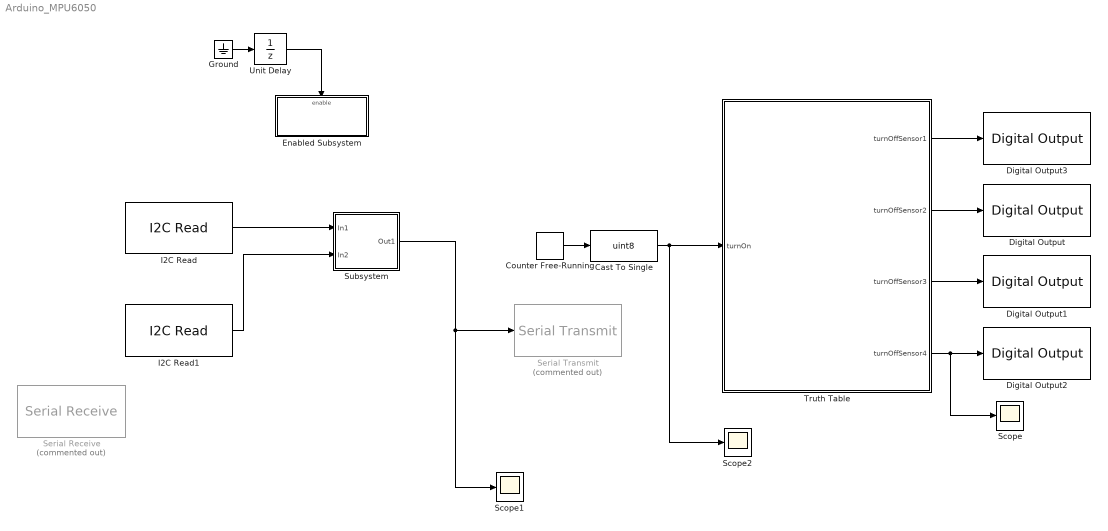
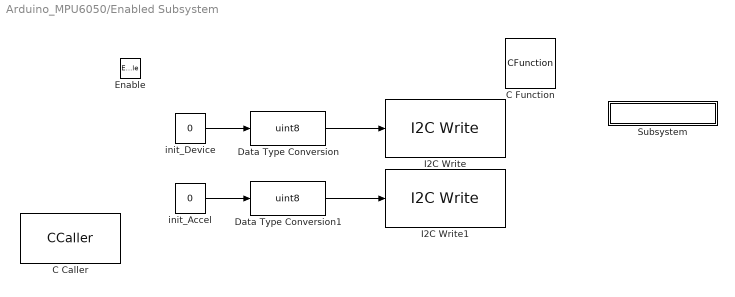
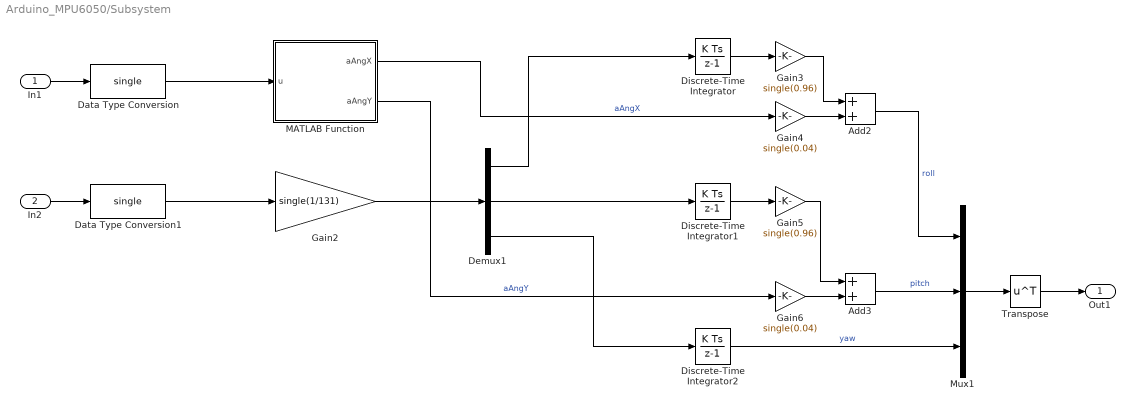
== system Arduino_MPU6050/Enabled Subsystem/Subsystem ==

== matlab function Arduino_MPU6050/Truth Table ==
function [turnOffSensor1,turnOffSensor2, turnOffSensor3, turnOffSensor4] = fcn(turnOn)

aVarTruthTableCondition_1 = false;
aVarTruthTableCondition_2 = false;
aVarTruthTableCondition_3 = false;
aVarTruthTableCondition_4 = false;


% Accelerometer 1

aVarTruthTableCondition_1 = logical(turnOn==uint8(0));

% Accelerometer 2

aVarTruthTableCondition_2 = logical(turnOn==uint8(1));

% Accelerometer 3

aVarTruthTableCondition_3 = logical(turnOn==uint8(2));

% Accelerometer 4

aVarTruthTableCondition_4 = logical(turnOn==uint8(3));

if (aVarTruthTableCondition_1 && ~aVarTruthTableCondition_2 && ~aVarTruthTableCondition_3 && ~aVarTruthTableCondition_4)
    Sensor1On();
elseif (~aVarTruthTableCondition_1 && aVarTruthTableCondition_2 && ~aVarTruthTableCondition_3 && ~aVarTruthTableCondition_4)
    Sensor2On();
elseif (~aVarTruthTableCondition_1 && ~aVarTruthTableCondition_2 && aVarTruthTableCondition_3 && ~aVarTruthTableCondition_4)
    Sensor3On();
elseif (~aVarTruthTableCondition_1 && ~aVarTruthTableCondition_2 && ~aVarTruthTableCondition_3 && aVarTruthTableCondition_4)
    Sensor4On();
else % Default
    SensorError();
end

function Sensor1On()

% SNSR1

turnOffSensor1 = false;
turnOffSensor2 = true;
turnOffSensor3 = true;
turnOffSensor4 = true;

function Sensor2On()

% SNSR2

turnOffSensor1 = true;
turnOffSensor2 = false;
turnOffSensor3 = true;
turnOffSensor4 = true;

function Sensor3On()

% SNSR3

turnOffSensor1 = true;
turnOffSensor2 = true;
turnOffSensor3 = false;
turnOffSensor4 = true;

function Sensor4On()

% SNSR4

turnOffSensor1 = true;
turnOffSensor2 = true;
turnOffSensor3 = true;
turnOffSensor4 = false;

function SensorError()

% Error

turnOffSensor1 = true;
turnOffSensor2 = true;
turnOffSensor3 = true;
turnOffSensor4 = true;

== matlab function Arduino_MPU6050/Subsystem/MATLAB Function ==
function [aAngX,aAngY] = fcn(u)
aX=u(1)/16384; aY=u(2)/16384; aZ=u(3)/16384;
aAngX = atan(aY / sqrt(aX^2+aZ^2))*180/pi - 0.58;
aAngY = atan(-aX/ sqrt(aY^2+aZ^2))*180/pi + 1.58;

/*
 * File: Arduino_MPU6050.c
 *
 * Code generated for Simulink model 'Arduino_MPU6050'.
 *
 * Model version                  : 1.23
 * Simulink Coder version         : 9.6 (R2021b) 14-May-2021
 * C/C++ source code generated on : Wed Apr 27 22:23:47 2022
 *
 * Target selection: ert.tlc
 * Embedded hardware selection: Atmel->AVR
 * Code generation objectives:
 *    1. Execution efficiency
 *    2. ROM efficiency
 * Validation result: Not run
 */

#include "Arduino_MPU6050.h"

/* Private macros used by the generated code to access rtModel */
#ifndef rtmSetTFinal
#define rtmSetTFinal(rtm, val)         ((rtm)->Timing.tFinal = (val))
#endif

#include "dsp_rt.h"  /* DSP System Toolbox general run time support functions */
#ifndef UCHAR_MAX
#include <limits.h>
#endif

#if ( UCHAR_MAX != (0xFFU) ) || ( SCHAR_MAX != (0x7F) )
#error Code was generated for compiler with different sized uchar/char. \
Consider adjusting Test hardware word size settings on the \
Hardware Implementation pane to match your compiler word sizes as \
defined in limits.h of the compiler. Alternatively, you can \
select the Test hardware is the same as production hardware option and \
select the Enable portable word sizes option on the Code Generation > \
Verification pane for ERT based targets, which will disable the \
preprocessor word size checks.
#endif

#if ( USHRT_MAX != (0xFFFFU) ) || ( SHRT_MAX != (0x7FFF) )
#error Code was generated for compiler with different sized ushort/short. \
Consider adjusting Test hardware word size settings on the \
Hardware Implementation pane to match your compiler word sizes as \
defined in limits.h of the compiler. Alternatively, you can \
select the Test hardware is the same as production hardware option and \
select the Enable portable word sizes option on the Code Generation > \
Verification pane for ERT based targets, which will disable the \
preprocessor word size checks.
#endif

#if ( UINT_MAX != (0xFFFFU) ) || ( INT_MAX != (0x7FFF) )
#error Code was generated for compiler with different sized uint/int. \
Consider adjusting Test hardware word size settings on the \
Hardware Implementation pane to match your compiler word sizes as \
defined in limits.h of the compiler. Alternatively, you can \
select the Test hardware is the same as production hardware option and \
select the Enable portable word sizes option on the Code Generation > \
Verification pane for ERT based targets, which will disable the \
preprocessor word size checks.
#endif

#if ( ULONG_MAX != (0xFFFFFFFFUL) ) || ( LONG_MAX != (0x7FFFFFFFL) )
#error Code was generated for compiler with different sized ulong/long. \
Consider adjusting Test hardware word size settings on the \
Hardware Implementation pane to match your compiler word sizes as \
defined in limits.h of the compiler. Alternatively, you can \
select the Test hardware is the same as production hardware option and \
select the Enable portable word sizes option on the Code Generation > \
Verification pane for ERT based targets, which will disable the \
preprocessor word size checks.
#endif

/* Block signals (default storage) */
B rtB;

/* Block states (default storage) */
DW rtDW;

/* Real-time model */
static RT_MODEL rtM_;
RT_MODEL *const rtM = &rtM_;
static void IfActionSubsystem(real32_T rtu_In1, real32_T rtu_In2, real32_T
  rtu_In3, real32_T rtu_In4, real32_T rtu_In5, real32_T rtu_In6, real32_T
  *rty_Out1, real32_T *rty_Out2);
static void IfActionSubsystem1(real32_T rtu_In1, real32_T rtu_In2, real32_T
  *rty_Out1, real32_T *rty_Out2);

/*
 * Output and update for action system:
 *    '<S7>/If Action Subsystem'
 *    '<S8>/If Action Subsystem'
 *    '<S9>/If Action Subsystem'
 */
static void IfActionSubsystem(real32_T rtu_In1, real32_T rtu_In2, real32_T
  rtu_In3, real32_T rtu_In4, real32_T rtu_In5, real32_T rtu_In6, real32_T
  *rty_Out1, real32_T *rty_Out2)
{
  /* Product: '<S13>/linear term6' incorporates:
   *  Product: '<S13>/linear term3'
   *  Product: '<S13>/linear term4'
   *  Sum: '<S13>/Sum1'
   */
  *rty_Out2 = (rtu_In5 * rtu_In3 - rtu_In4 * rtu_In1) / rtu_In6;

  /* Product: '<S13>/linear term5' incorporates:
   *  Product: '<S13>/linear term1'
   *  Product: '<S13>/linear term2'
   *  Sum: '<S13>/Sum4'
   */
  *rty_Out1 = (rtu_In1 * rtu_In2 - rtu_In3 * rtu_In4) / rtu_In6;
}

/*
 * Output and update for action system:
 *    '<S7>/If Action Subsystem1'
 *    '<S8>/If Action Subsystem1'
 *    '<S9>/If Action Subsystem1'
 */
static void IfActionSubsystem1(real32_T rtu_In1, real32_T rtu_In2, real32_T
  *rty_Out1, real32_T *rty_Out2)
{
  /* SignalConversion generated from: '<S14>/Out2' */
  *rty_Out2 = rtu_In2;

  /* SignalConversion generated from: '<S14>/Out1' incorporates:
   *  S-Function (sdspihcplx2): '<S14>/Inherit Complexity'
   */
  *rty_Out1 = rtu_In1;
}

/* Model step function */
void Arduino_MPU6050_step(void)
{
  /* local block i/o variables */
  real32_T rtb_Inherit;
  real32_T rtb_Inherit_g;
  real32_T rtb_Inherit_i;
  real32_T aX;
  real32_T aY;
  real32_T aZ;
  real32_T rtb_Sum1;
  int16_T b_output[3];
  uint8_T output_raw[6];
  uint8_T b_SwappedDataBytes[2];
  uint8_T b_x[2];
  uint8_T status;
  boolean_T aVarTruthTableCondition_1;
  boolean_T aVarTruthTableCondition_2;
  boolean_T aVarTruthTableCondition_3;
  boolean_T aVarTruthTableCondition_4;
  boolean_T tmp;
  boolean_T tmp_0;
  boolean_T tmp_2;

  /* Reset subsysRan breadcrumbs */
  srClearBC(rtDW.EnabledSubsystem_SubsysRanBC);

  /* Reset subsysRan breadcrumbs */
  srClearBC(rtDW.IfActionSubsystem_c.IfActionSubsystem_SubsysRanBC);

  /* Reset subsysRan breadcrumbs */
  srClearBC(rtDW.IfActionSubsystem1_g.IfActionSubsystem1_SubsysRanBC);

  /* MATLABSystem: '<Root>/I2C Read' */
  if (rtDW.obj_j.SampleTime != rtP.I2CRead_SampleTime) {
    rtDW.obj_j.SampleTime = rtP.I2CRead_SampleTime;
  }

  status = 59U;
  status = MW_I2C_MasterWrite(rtDW.obj_j.I2CDriverObj.MW_I2C_HANDLE, 104UL,
    &status, 1UL, true, false);
  if (0 == status) {
    MW_I2C_MasterRead(rtDW.obj_j.I2CDriverObj.MW_I2C_HANDLE, 104UL, &output_raw
                      [0], 6UL, false, true);
    memcpy((void *)&b_output[0], (void *)&output_raw[0], (uint16_T)((size_t)3 *
            sizeof(int16_T)));
    memcpy((void *)&b_SwappedDataBytes[0], (void *)&b_output[0], (uint16_T)
           ((size_t)2 * sizeof(uint8_T)));
    b_x[0] = b_SwappedDataBytes[1];
    b_x[1] = b_SwappedDataBytes[0];
    memcpy((void *)&b_output[0], (void *)&b_x[0], (uint16_T)((size_t)1 * sizeof
            (int16_T)));
    memcpy((void *)&b_SwappedDataBytes[0], (void *)&b_output[1], (uint16_T)
           ((size_t)2 * sizeof(uint8_T)));
    b_x[0] = b_SwappedDataBytes[1];
    b_x[1] = b_SwappedDataBytes[0];
    memcpy((void *)&b_output[1], (void *)&b_x[0], (uint16_T)((size_t)1 * sizeof
            (int16_T)));
    memcpy((void *)&b_SwappedDataBytes[0], (void *)&b_output[2], (uint16_T)
           ((size_t)2 * sizeof(uint8_T)));
    b_x[0] = b_SwappedDataBytes[1];
    b_x[1] = b_SwappedDataBytes[0];
    memcpy((void *)&b_output[2], (void *)&b_x[0], (uint16_T)((size_t)1 * sizeof
            (int16_T)));
  } else {
    b_output[0] = 0;
    b_output[1] = 0;
    b_output[2] = 0;
  }

  /* MATLAB Function: '<S3>/MATLAB Function' incorporates:
   *  MATLABSystem: '<Root>/I2C Read'
   */
  aX = (real32_T)b_output[0] / 16384.0F;
  aY = (real32_T)b_output[1] / 16384.0F;
  aZ = (real32_T)b_output[2] / 16384.0F;
  aZ *= aZ;

  /* Math: '<S3>/Transpose' incorporates:
   *  DiscreteIntegrator: '<S3>/Discrete-Time Integrator'
   *  DiscreteIntegrator: '<S3>/Discrete-Time Integrator1'
   *  DiscreteIntegrator: '<S3>/Discrete-Time Integrator2'
   *  Gain: '<S3>/Gain3'
   *  Gain: '<S3>/Gain4'
   *  Gain: '<S3>/Gain5'
   *  Gain: '<S3>/Gain6'
   *  MATLAB Function: '<S3>/MATLAB Function'
   *  Sum: '<S3>/Add2'
   *  Sum: '<S3>/Add3'
   */
  rtB.Transpose[0] = (atanf(aY / sqrtf(aX * aX + aZ)) * 180.0F / 3.14159274F -
                      0.58F) * rtP.Gain4_Gain + rtP.Gain3_Gain *
    rtDW.DiscreteTimeIntegrator_DSTATE;
  rtB.Transpose[1] = (atanf(-aX / sqrtf(aY * aY + aZ)) * 180.0F / 3.14159274F +
                      1.58F) * rtP.Gain6_Gain + rtP.Gain5_Gain *
    rtDW.DiscreteTimeIntegrator1_DSTATE;
  rtB.Transpose[2] = rtDW.DiscreteTimeIntegrator2_DSTATE;

  /* MATLABSystem: '<Root>/I2C Read1' */
  if (rtDW.obj.SampleTime != rtP.I2CRead1_SampleTime) {
    rtDW.obj.SampleTime = rtP.I2CRead1_SampleTime;
  }

  status = 67U;
  status = MW_I2C_MasterWrite(rtDW.obj.I2CDriverObj.MW_I2C_HANDLE, 104UL,
    &status, 1UL, true, false);
  if (0 == status) {
    MW_I2C_MasterRead(rtDW.obj.I2CDriverObj.MW_I2C_HANDLE, 104UL, &output_raw[0],
                      6UL, false, true);
    memcpy((void *)&b_output[0], (void *)&output_raw[0], (uint16_T)((size_t)3 *
            sizeof(int16_T)));
    memcpy((void *)&b_SwappedDataBytes[0], (void *)&b_output[0], (uint16_T)
           ((size_t)2 * sizeof(uint8_T)));
    b_x[0] = b_SwappedDataBytes[1];
    b_x[1] = b_SwappedDataBytes[0];
    memcpy((void *)&b_output[0], (void *)&b_x[0], (uint16_T)((size_t)1 * sizeof
            (int16_T)));
    memcpy((void *)&b_SwappedDataBytes[0], (void *)&b_output[1], (uint16_T)
           ((size_t)2 * sizeof(uint8_T)));
    b_x[0] = b_SwappedDataBytes[1];
    b_x[1] = b_SwappedDataBytes[0];
    memcpy((void *)&b_output[1], (void *)&b_x[0], (uint16_T)((size_t)1 * sizeof
            (int16_T)));
    memcpy((void *)&b_SwappedDataBytes[0], (void *)&b_output[2], (uint16_T)
           ((size_t)2 * sizeof(uint8_T)));
    b_x[0] = b_SwappedDataBytes[1];
    b_x[1] = b_SwappedDataBytes[0];
    memcpy((void *)&b_output[2], (void *)&b_x[0], (uint16_T)((size_t)1 * sizeof
            (int16_T)));
  } else {
    b_output[0] = 0;
    b_output[1] = 0;
    b_output[2] = 0;
  }

  /* Gain: '<S3>/Gain2' incorporates:
   *  DataTypeConversion: '<S3>/Data Type Conversion1'
   *  MATLABSystem: '<Root>/I2C Read1'
   */
  rtB.Gain2[0] = rtP.Gain2_Gain * (real32_T)b_output[0];
  rtB.Gain2[1] = rtP.Gain2_Gain * (real32_T)b_output[1];
  rtB.Gain2[2] = rtP.Gain2_Gain * (real32_T)b_output[2];

  /* DotProduct: '<S7>/Dot Product2' incorporates:
   *  Product: '<S7>/linear term2'
   *  S-Function (sdspramp): '<S7>/Constant Ramp'
   */
  aZ = rtConstB.ramp * rtConstB.ramp;

  /* Sum: '<S7>/Sum1' incorporates:
   *  DotProduct: '<S7>/Dot Product2'
   *  Product: '<S7>/linear term3'
   *  S-Function (sdspstatminmax): '<S7>/Maximum'
   */
  rtb_Sum1 = aZ * rtConstB.ramp - aZ;

  /* If: '<S7>/else' incorporates:
   *  DotProduct: '<S7>/Dot Product'
   *  DotProduct: '<S7>/Dot Product2'
   *  S-Function (sdspramp): '<S7>/Constant Ramp'
   *  S-Function (sdspstatminmax): '<S7>/Maximum'
   *  Sum: '<S7>/Matrix Sum1'
   *  Sum: '<S7>/Matrix Sum2'
   */
  if (rtb_Sum1 > 1.0F) {
    /* Outputs for IfAction SubSystem: '<S7>/If Action Subsystem' incorporates:
     *  ActionPort: '<S13>/Action Port'
     */
    IfActionSubsystem(rtConstB.ramp * rtB.Gain2[0], rtConstB.ramp, rtB.Gain2[0],
                      rtConstB.ramp, aZ, rtb_Sum1, &aX, &aY);

    /* End of Outputs for SubSystem: '<S7>/If Action Subsystem' */
  } else {
    /* Outputs for IfAction SubSystem: '<S7>/If Action Subsystem1' incorporates:
     *  ActionPort: '<S14>/Action Port'
     */
    IfActionSubsystem1(rtb_Sum1, rtB.Gain2[0], &aX, &aY);

    /* End of Outputs for SubSystem: '<S7>/If Action Subsystem1' */
  }

  /* End of If: '<S7>/else' */

  /* DotProduct: '<S8>/Dot Product2' incorporates:
   *  Product: '<S8>/linear term2'
   *  S-Function (sdspramp): '<S8>/Constant Ramp'
   */
  aZ = rtConstB.ramp_i * rtConstB.ramp_i;

  /* Sum: '<S7>/Sum4' incorporates:
   *  Product: '<S7>/linear term1'
   *  Sum: '<S7>/Sum5'
   */
  aY = rtB.Gain2[0] - (rtConstB.ramp * aX + aY);

  /* S-Function (sdspfrmconv): '<S15>/Inherit' */
  /* DSP System Toolbox Frame Status Conversion (sdspfrmconv) - <S15>/Inherit */
  rtb_Inherit = aY;

  /* Sum: '<S8>/Sum1' incorporates:
   *  DotProduct: '<S8>/Dot Product2'
   *  Product: '<S8>/linear term3'
   *  S-Function (sdspstatminmax): '<S8>/Maximum'
   */
  rtb_Sum1 = aZ * rtConstB.ramp_i - aZ;

  /* If: '<S8>/else' incorporates:
   *  DotProduct: '<S8>/Dot Product'
   *  DotProduct: '<S8>/Dot Product2'
   *  S-Function (sdspramp): '<S8>/Constant Ramp'
   *  S-Function (sdspstatminmax): '<S8>/Maximum'
   *  Sum: '<S8>/Matrix Sum1'
   *  Sum: '<S8>/Matrix Sum2'
   */
  if (rtb_Sum1 > 1.0F) {
    /* Outputs for IfAction SubSystem: '<S8>/If Action Subsystem' incorporates:
     *  ActionPort: '<S18>/Action Port'
     */
    IfActionSubsystem(rtConstB.ramp_i * rtB.Gain2[1], rtConstB.ramp_i,
                      rtB.Gain2[1], rtConstB.ramp_i, aZ, rtb_Sum1, &aY, &aX);

    /* End of Outputs for SubSystem: '<S8>/If Action Subsystem' */
  } else {
    /* Outputs for IfAction SubSystem: '<S8>/If Action Subsystem1' incorporates:
     *  ActionPort: '<S19>/Action Port'
     */
    IfActionSubsystem1(rtb_Sum1, rtB.Gain2[1], &aY, &aX);

    /* End of Outputs for SubSystem: '<S8>/If Action Subsystem1' */
  }

  /* End of If: '<S8>/else' */

  /* DotProduct: '<S9>/Dot Product2' incorporates:
   *  Product: '<S9>/linear term2'
   *  S-Function (sdspramp): '<S9>/Constant Ramp'
   */
  aZ = rtConstB.ramp_f * rtConstB.ramp_f;

  /* Sum: '<S9>/Sum4' incorporates:
   *  Product: '<S8>/linear term1'
   *  Sum: '<S8>/Sum4'
   *  Sum: '<S8>/Sum5'
   */
  aX = rtB.Gain2[1] - (rtConstB.ramp_i * aY + aX);

  /* S-Function (sdspfrmconv): '<S20>/Inherit' */
  /* DSP System Toolbox Frame Status Conversion (sdspfrmconv) - <S20>/Inherit */
  rtb_Inherit_g = aX;

  /* Sum: '<S9>/Sum1' incorporates:
   *  DotProduct: '<S9>/Dot Product2'
   *  Product: '<S9>/linear term3'
   *  S-Function (sdspstatminmax): '<S9>/Maximum'
   */
  rtb_Sum1 = aZ * rtConstB.ramp_f - aZ;

  /* If: '<S9>/else' incorporates:
   *  DotProduct: '<S9>/Dot Product'
   *  DotProduct: '<S9>/Dot Product2'
   *  S-Function (sdspramp): '<S9>/Constant Ramp'
   *  S-Function (sdspstatminmax): '<S9>/Maximum'
   *  Sum: '<S9>/Matrix Sum1'
   *  Sum: '<S9>/Matrix Sum2'
   */
  if (rtb_Sum1 > 1.0F) {
    /* Outputs for IfAction SubSystem: '<S9>/If Action Subsystem' incorporates:
     *  ActionPort: '<S23>/Action Port'
     */
    IfActionSubsystem(rtConstB.ramp_f * rtB.Gain2[2], rtConstB.ramp_f,
                      rtB.Gain2[2], rtConstB.ramp_f, aZ, rtb_Sum1, &aY, &aX);

    /* End of Outputs for SubSystem: '<S9>/If Action Subsystem' */
  } else {
    /* Outputs for IfAction SubSystem: '<S9>/If Action Subsystem1' incorporates:
     *  ActionPort: '<S24>/Action Port'
     */
    IfActionSubsystem1(rtb_Sum1, rtB.Gain2[2], &aY, &aX);

    /* End of Outputs for SubSystem: '<S9>/If Action Subsystem1' */
  }

  /* End of If: '<S9>/else' */

  /* Sum: '<S9>/Sum4' incorporates:
   *  Product: '<S9>/linear term1'
   *  Sum: '<S9>/Sum5'
   */
  aX = rtB.Gain2[2] - (rtConstB.ramp_f * aY + aX);

  /* S-Function (sdspfrmconv): '<S25>/Inherit' */
  /* DSP System Toolbox Frame Status Conversion (sdspfrmconv) - <S25>/Inherit */
  rtb_Inherit_i = aX;

  /* DataTypeConversion: '<Root>/Cast To Single' incorporates:
   *  UnitDelay: '<S1>/Output'
   */
  rtB.CastToSingle = rtDW.Output_DSTATE;

  /* Truth Table: '<Root>/Truth Table' */
  /*  Accelerometer 1 */
  aVarTruthTableCondition_1 = (rtB.CastToSingle == 0);

  /*  Accelerometer 2 */
  aVarTruthTableCondition_2 = (rtB.CastToSingle == 1);

  /*  Accelerometer 3 */
  aVarTruthTableCondition_3 = (rtB.CastToSingle == 2);

  /*  Accelerometer 4 */
  aVarTruthTableCondition_4 = (rtB.CastToSingle == 3);
  tmp = !aVarTruthTableCondition_3;
  tmp_0 = !aVarTruthTableCondition_4;
  tmp_2 = !aVarTruthTableCondition_2;
  if (aVarTruthTableCondition_1 && tmp_2 && tmp && tmp_0) {
    /*  SNSR1 */
    aVarTruthTableCondition_1 = false;
    aVarTruthTableCondition_2 = true;
    aVarTruthTableCondition_3 = true;
    rtB.turnOffSensor4 = true;
  } else {
    boolean_T tmp_1;
    tmp_1 = !aVarTruthTableCondition_1;
    if (tmp_1 && aVarTruthTableCondition_2 && tmp && tmp_0) {
      /*  SNSR2 */
      aVarTruthTableCondition_1 = true;
      aVarTruthTableCondition_2 = false;
      aVarTruthTableCondition_3 = true;
      rtB.turnOffSensor4 = true;
    } else if (tmp_1 && tmp_2 && aVarTruthTableCondition_3 && tmp_0) {
      /*  SNSR3 */
      aVarTruthTableCondition_1 = true;
      aVarTruthTableCondition_2 = true;
      aVarTruthTableCondition_3 = false;
      rtB.turnOffSensor4 = true;
    } else if ((!aVarTruthTableCondition_1) && tmp_2 && tmp &&
               aVarTruthTableCondition_4) {
      /*  SNSR4 */
      aVarTruthTableCondition_1 = true;
      aVarTruthTableCondition_2 = true;
      aVarTruthTableCondition_3 = true;
      rtB.turnOffSensor4 = false;
    } else {
      /*  Default */
      /*  Error */
      aVarTruthTableCondition_1 = true;
      aVarTruthTableCondition_2 = true;
      aVarTruthTableCondition_3 = true;
      rtB.turnOffSensor4 = true;
    }
  }

  /* End of Truth Table: '<Root>/Truth Table' */

  /* MATLABSystem: '<Root>/Digital Output' */
  writeDigitalPin(51, (uint8_T)aVarTruthTableCondition_2);

  /* MATLABSystem: '<Root>/Digital Output1' */
  writeDigitalPin(52, (uint8_T)aVarTruthTableCondition_3);

  /* MATLABSystem: '<Root>/Digital Output2' */
  writeDigitalPin(53, (uint8_T)rtB.turnOffSensor4);

  /* MATLABSystem: '<Root>/Digital Output3' */
  writeDigitalPin(50, (uint8_T)aVarTruthTableCondition_1);

  /* Sum: '<S5>/FixPt Sum1' incorporates:
   *  Constant: '<S5>/FixPt Constant'
   *  UnitDelay: '<S1>/Output'
   */
  status = (uint8_T)((uint8_T)((uint16_T)rtDW.Output_DSTATE +
    rtP.FixPtConstant_Value) & 3);

  /* Outputs for Enabled SubSystem: '<Root>/Enabled Subsystem' incorporates:
   *  EnablePort: '<S2>/Enable'
   */
  /* UnitDelay: '<Root>/Unit Delay' */
  if (rtDW.UnitDelay_DSTATE > 0.0) {
    /* MATLABSystem: '<S2>/I2C Write' incorporates:
     *  Constant: '<S2>/init_Device'
     *  DataTypeConversion: '<S2>/Data Type Conversion'
     */
    b_SwappedDataBytes[0] = 107U;
    b_SwappedDataBytes[1] = (uint8_T)rtP.init_Device_Value;
    MW_I2C_MasterWrite(rtDW.obj_e.I2CDriverObj.MW_I2C_HANDLE, 104UL,
                       &b_SwappedDataBytes[0], 2UL, false, false);

    /* MATLABSystem: '<S2>/I2C Write1' incorporates:
     *  Constant: '<S2>/init_Accel'
     *  DataTypeConversion: '<S2>/Data Type Conversion1'
     */
    b_SwappedDataBytes[0] = 28U;
    b_SwappedDataBytes[1] = (uint8_T)rtP.init_Accel_Value;
    MW_I2C_MasterWrite(rtDW.obj_n.I2CDriverObj.MW_I2C_HANDLE, 104UL,
                       &b_SwappedDataBytes[0], 2UL, false, false);
    srUpdateBC(rtDW.EnabledSubsystem_SubsysRanBC);
  }

  /* End of UnitDelay: '<Root>/Unit Delay' */
  /* End of Outputs for SubSystem: '<Root>/Enabled Subsystem' */

  /* Update for DiscreteIntegrator: '<S3>/Discrete-Time Integrator' */
  rtDW.DiscreteTimeIntegrator_DSTATE += rtP.DiscreteTimeIntegrator_gainval *
    rtb_Inherit;

  /* Update for DiscreteIntegrator: '<S3>/Discrete-Time Integrator1' */
  rtDW.DiscreteTimeIntegrator1_DSTATE += rtP.DiscreteTimeIntegrator1_gainval *
    rtb_Inherit_g;

  /* Update for DiscreteIntegrator: '<S3>/Discrete-Time Integrator2' */
  rtDW.DiscreteTimeIntegrator2_DSTATE += rtP.DiscreteTimeIntegrator2_gainval *
    rtb_Inherit_i;

  /* Switch: '<S6>/FixPt Switch' incorporates:
   *  Sum: '<S5>/FixPt Sum1'
   */
  if (status > rtP.WrapToZero_Threshold) {
    /* Update for UnitDelay: '<S1>/Output' incorporates:
     *  Constant: '<S6>/Constant'
     */
    rtDW.Output_DSTATE = rtP.Constant_Value;
  } else {
    /* Update for UnitDelay: '<S1>/Output' */
    rtDW.Output_DSTATE = status;
  }

  /* End of Switch: '<S6>/FixPt Switch' */

  /* Update for UnitDelay: '<Root>/Unit Delay' */
  rtDW.UnitDelay_DSTATE = 0.0;

  {                                    /* Sample time: [0.02s, 0.0s] */
  }

  /* Update absolute time for base rate */
  /* The "clockTick0" counts the number of times the code of this task has
   * been executed. The absolute time is the multiplication of "clockTick0"
   * and "Timing.stepSize0". Size of "clockTick0" ensures timer will not
   * overflow during the application lifespan selected.
   */
  rtM->Timing.taskTime0 =
    ((time_T)(++rtM->Timing.clockTick0)) * rtM->Timing.stepSize0;
}
